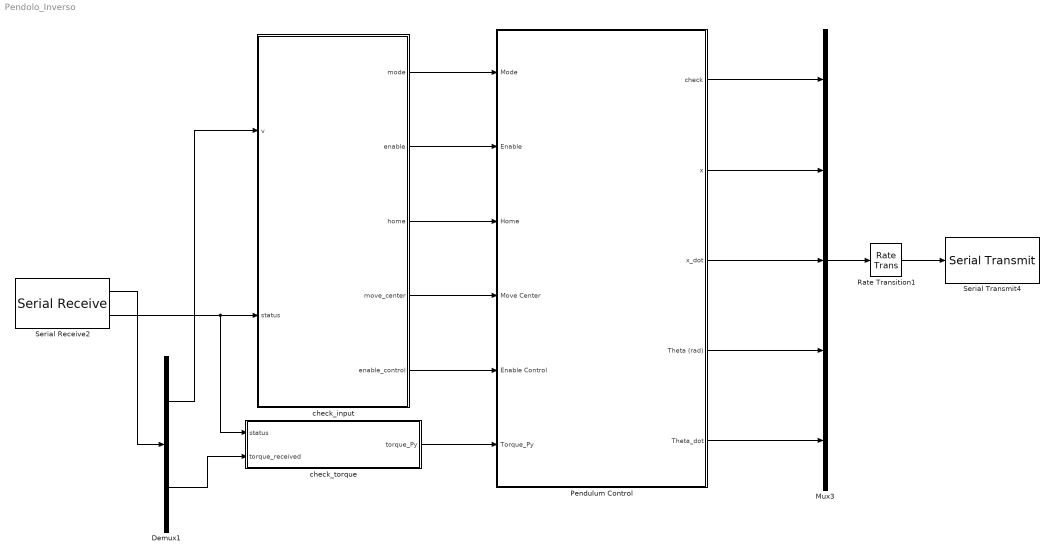
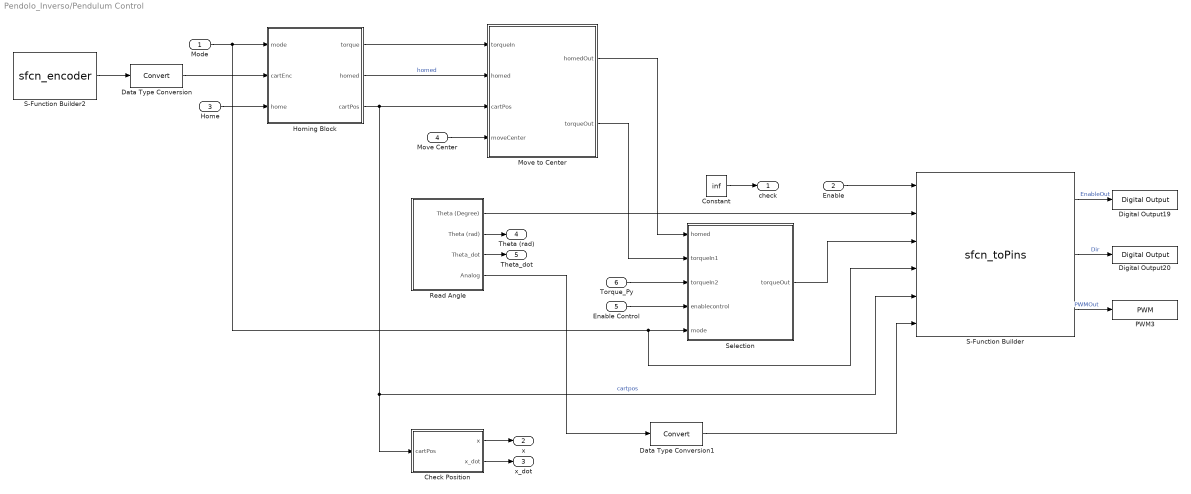
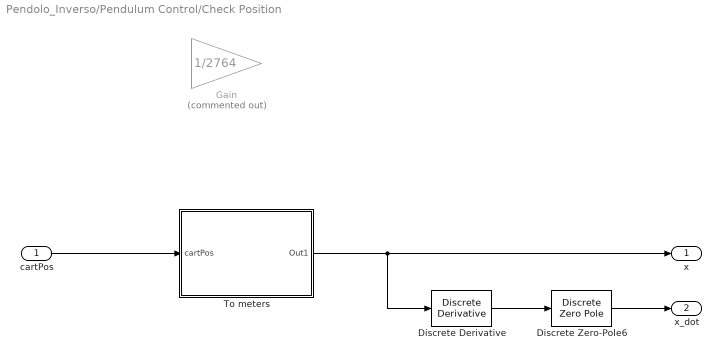
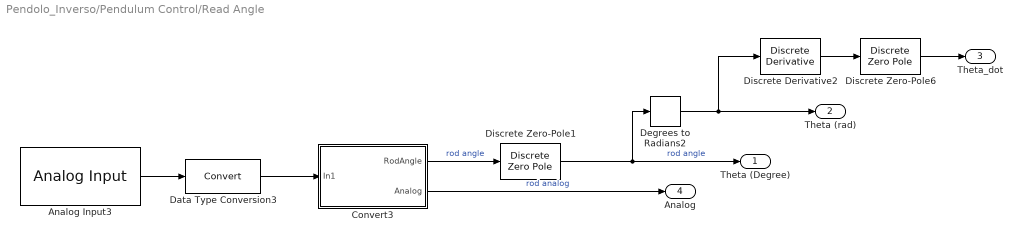
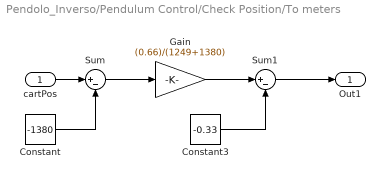
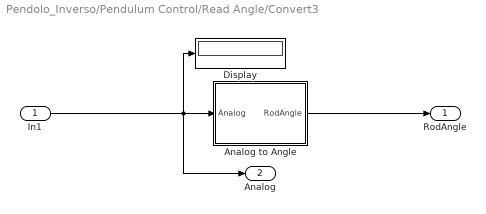
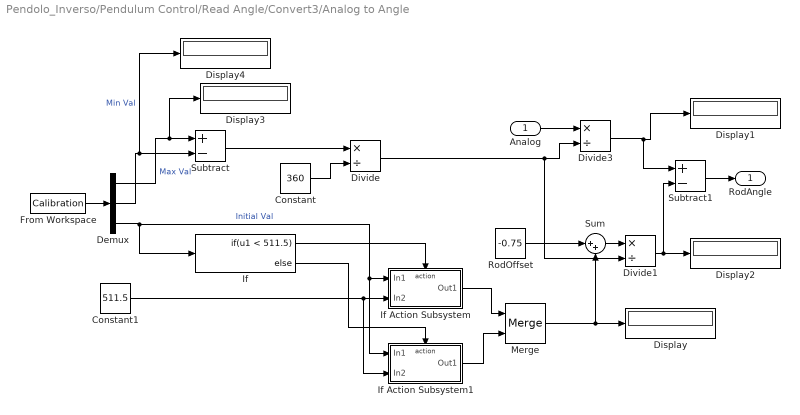
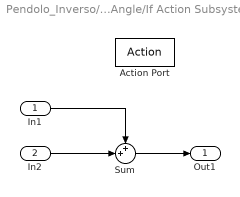
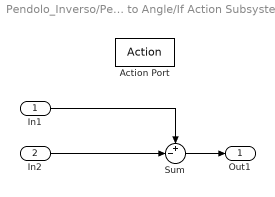
== matlab function Pendolo_Inverso/check_torque ==
function torque_Py = check_torque(status, torque_received)

persistent state
persistent torque_value

if(isempty(state))
    state = 1;
    torque_value = 0;
end

if(status == 1)
    torque_value = torque_received;
end

torque_Py = torque_value;

== matlab function Pendolo_Inverso/check_input ==
function [mode, enable, home, move_center, enable_control] = check_input(v, status)

persistent mode_value
persistent enable_value
persistent home_value
persistent move_center_value
persistent enable_control_value
persistent state

if(isempty(state))
    mode_value = 0;
    enable_value = 0;
    home_value = 0;
    move_center_value = 0;
    enable_control_value = 0;
    state = 0;
end

u = int8(v);
if (status == 1)
    if (u == 1)
        enable_value = mod(enable_value + 1, 2);
    elseif(u == 2)
        home_value = mod(home_value + 1, 2);
    elseif(u == 3)
        move_center_value = mod(move_center_value + 1, 2);
    elseif (u == 4)
        mode_value = mod(mode_value + 1, 2);
    elseif (u == 5)
        enable_control_value = mod(enable_control_value + 1, 2);
    end
end

mode = mode_value;
enable = enable_value;
home = home_value;
move_center = move_center_value;
enable_control = enable_control_value;

== matlab function Pendolo_Inverso/Pendulum Control/Homing Block ==
function [torque,homed,cartPos]=fcn(mode,cartEnc,home)
persistent torqueval
persistent state
persistent precartEnc
persistent homeval
persistent counter
persistent i
persistent precart
persistent prepos
persistent precartArray

% La prima volta isempty(state)==true, quindi inizializza tutte le variabili%
if isempty(state)
    torqueval=0;
    state=0;
    precartEnc=0;
    precartArray=[0 0 0 0 0 0 0 0 0 0];
    homeval=0;
    counter=0;
    i=0;
    precart=0;
    prepos=0;
end

% mode==0 è true se e solo se è settato su Initialize!!!
if (mode==0)

    
    if (homeval==0) % homeval è la variabile homed (homeval==0 : il cart NON sta al limite sinistro, homeval==1 : il cart sta al limite sinistro)
        if (home==0)    %(Home:Value settato ad OFF)
            state=0;
            homeval=0;
            counter=0;
            precart=0;
            prepos=0;
            precartArray=[0 0 0 0 0 0 0 0 0 0];
        end

        if (state==0)   
            torqueval=0;
            if (home==1) % (Home:Value settato ad ON)
                state=1;    % State != 0 <--> Centra il cart
            end
        elseif (state==1)
            torqueval=-300; % Settiamo quanto veloce deve andare il motore (essendo negativo vuol dire che il cart andrà a sinistra)
            state=2;
        elseif (state==2) % 1 sec wait and check final cartpos
            if (counter==150)
                if (all(precartArray==cartEnc)) % Se le ultime 10 posizioni del cart nell'utlimo secondo sono uguali a quella attuale vuol dire che ho raggiunto il limite sinistro
                    torqueval=0;    %Fermo il motore
                    homeval=1;  % Variabile homed settata ad 1
                    prepos=cartEnc; %Salvo il valore encoded della posizione attuale
                else
                      i=i+1;
                      precartArray(i)=precart; %Salvo le ultime 10 posizioni del cart
                      if (i==10)
                          i=0;
                      end             
                      precart=cartEnc;
                end
            else
                counter=counter+1;
            end
        end
    else
        if (home==0)
            state=0;
            homeval=0;
            counter=0;
            precartEnc=0;
            prepos=0;
        end
    end
end
homed=homeval;
torque=torqueval;
if (homed==1)   % Se non siamo più in fase di Inizializzazione prepos è costante, ma cartEnc varia in ogni ciclo
    precartEnc=-1382-prepos; % precartEnc : posizione del limite sinistro del pendolo
    cartPos=precartEnc+cartEnc;     % cartPos : posizione attuale del Cart
else
    cartPos=cartEnc;
end
end

== matlab function Pendolo_Inverso/Pendulum Control/Move to Center ==
function [homedOut, torqueOut] = fcn(torqueIn, homed, cartPos, moveCenter)
%initializing
persistent kp;
persistent set_pos;
if isempty(kp)
    set_pos=0;
    kp=10;
end

if (homed == 1 && moveCenter==1)    % Se il cart è homed e lo voglio centrare
   torqueOut=(kp*(set_pos-cartPos));    % Imposto un valore della torque proporzionale all'errore
   if (abs(set_pos-cartPos)<1)  % Se sono dentro una banda di tolleranza mi fermo
       torqueOut=0;
   end
else
    torqueOut=torqueIn;
end
homedOut=homed;
end

== matlab function Pendolo_Inverso/Pendulum Control/Selection ==
function torqueOut  =fcn(homed,torqueIn1,torqueIn2,enablecontrol,mode)
persistent torqueval

if isempty(torqueval)
    torqueval=0;
end

if (mode==0)    % Se è settato su Inizialize
    torqueval=torqueIn1;    % Seguo la torque dettata dal blocco Move To Center
end
if (mode==1)    % Se è settato su Pendulum Control...
    if (homed==1)   %... ed il cart è homed
        if (enablecontrol==1)   % Se Enable Control:Value è settato ad ON
            torqueval=torqueIn2;    % Seguo la torque dettata dal blocco Pendulum Control
        else
            torqueval=0;
        end
    end
end

torqueOut=torqueval;
end

/*
 * Academic License - for use in teaching, academic research, and meeting
 * course requirements at degree granting institutions only.  Not for
 * government, commercial, or other organizational use.
 *
 * File: Pendolo_Inverso.c
 *
 * Code generated for Simulink model 'Pendolo_Inverso'.
 *
 * Model version                  : 1.23
 * Simulink Coder version         : 24.1 (R2024a) 19-Nov-2023
 * C/C++ source code generated on : Tue Oct 29 16:42:45 2024
 *
 * Target selection: ert.tlc
 * Embedded hardware selection: Atmel->AVR
 * Code generation objectives: Unspecified
 * Validation result: Not run
 */

#include "Pendolo_Inverso.h"
#include "rtwtypes.h"
#include "Pendolo_Inverso_private.h"
#include <string.h>
#include <math.h>
#include <stddef.h>
#include "rt_nonfinite.h"

/* Block signals (default storage) */
B_Pendolo_Inverso_T Pendolo_Inverso_B;

/* Block states (default storage) */
DW_Pendolo_Inverso_T Pendolo_Inverso_DW;

/* Real-time model */
static RT_MODEL_Pendolo_Inverso_T Pendolo_Inverso_M_;
RT_MODEL_Pendolo_Inverso_T *const Pendolo_Inverso_M = &Pendolo_Inverso_M_;

/* Forward declaration for local functions */
static real_T Pendolo_Inverso_mod(real_T x);
static void rate_monotonic_scheduler(void);

/*
 * Set which subrates need to run this base step (base rate always runs).
 * This function must be called prior to calling the model step function
 * in order to remember which rates need to run this base step.  The
 * buffering of events allows for overlapping preemption.
 */
void Pendolo_Inverso_SetEventsForThisBaseStep(boolean_T *eventFlags)
{
  /* Task runs when its counter is zero, computed via rtmStepTask macro */
  eventFlags[2] = ((boolean_T)rtmStepTask(Pendolo_Inverso_M, 2));
}

/*
 *         This function updates active task flag for each subrate
 *         and rate transition flags for tasks that exchange data.
 *         The function assumes rate-monotonic multitasking scheduler.
 *         The function must be called at model base rate so that
 *         the generated code self-manages all its subrates and rate
 *         transition flags.
 */
static void rate_monotonic_scheduler(void)
{
  /* To ensure a deterministic data transfer between two rates,
   * data is transferred at the priority of a fast task and the frequency
   * of the slow task.  The following flags indicate when the data transfer
   * happens.  That is, a rate interaction flag is set true when both rates
   * will run, and false otherwise.
   */

  /* tid 1 shares data with slower tid rate: 2 */
  if (Pendolo_Inverso_M->Timing.TaskCounters.TID[1] == 0) {
    Pendolo_Inverso_M->Timing.RateInteraction.TID1_2 =
      (Pendolo_Inverso_M->Timing.TaskCounters.TID[2] == 0);
  }

  /* Compute which subrates run during the next base time step.  Subrates
   * are an integer multiple of the base rate counter.  Therefore, the subtask
   * counter is reset when it reaches its limit (zero means run).
   */
  (Pendolo_Inverso_M->Timing.TaskCounters.TID[2])++;
  if ((Pendolo_Inverso_M->Timing.TaskCounters.TID[2]) > 9) {/* Sample time: [0.05s, 0.0s] */
    Pendolo_Inverso_M->Timing.TaskCounters.TID[2] = 0;
  }
}

real_T rt_roundd_snf(real_T u)
{
  real_T y;
  if (fabs(u) < 4.503599627370496E+15) {
    if (u >= 0.5) {
      y = floor(u + 0.5);
    } else if (u > -0.5) {
      y = u * 0.0;
    } else {
      y = ceil(u - 0.5);
    }
  } else {
    y = u;
  }

  return y;
}

/* Function for MATLAB Function: '<Root>/check_input' */
static real_T Pendolo_Inverso_mod(real_T x)
{
  real_T r;
  if (rtIsNaN(x)) {
    r = (rtNaN);
  } else if (rtIsInf(x)) {
    r = (rtNaN);
  } else if (x == 0.0) {
    r = 0.0;
  } else {
    r = fmod(x, 2.0);
    if (r == 0.0) {
      r = 0.0;
    } else if (x < 0.0) {
      r += 2.0;
    }
  }

  return r;
}

/* Model step function for TID0 */
void Pendolo_Inverso_step0(void)       /* Sample time: [0.0s, 0.0s] */
{
  /* local block i/o variables */
  real_T rtb_TSamp;
  real_T rtb_Diff;
  real_T rtb_TSamp_a;
  real_T rtb_Diff_m;
  real_T rtb_DiscreteZeroPole6;
  real_T rtb_DiscreteZeroPole6_f;
  real_T rtb_Divide;
  int16_T i;
  uint16_T b_varargout_1;
  int8_T tmp;
  uint8_T b_status;
  boolean_T exitg1;
  boolean_T y;

  {                                    /* Sample time: [0.0s, 0.0s] */
    rate_monotonic_scheduler();
  }

  /* FromWorkspace: '<S14>/From Workspace' */
  {
    real_T *pDataValues = (real_T *)
      Pendolo_Inverso_DW.FromWorkspace_PWORK.DataPtr;

    {
      int_T elIdx;
      for (elIdx = 0; elIdx < 3; ++elIdx) {
        (&Pendolo_Inverso_B.FromWorkspace[0])[elIdx] = pDataValues[0];
        pDataValues += 1;
      }
    }
  }

  /* MATLABSystem: '<Root>/Serial Receive2' */
  if (Pendolo_Inverso_DW.obj_m.Protocol !=
      Pendolo_Inverso_P.SerialReceive2_Protocol) {
    Pendolo_Inverso_DW.obj_m.Protocol =
      Pendolo_Inverso_P.SerialReceive2_Protocol;
  }

  if (Pendolo_Inverso_DW.obj_m.QueueSizeFactor !=
      Pendolo_Inverso_P.SerialReceive2_QueueSizeFactor) {
    Pendolo_Inverso_DW.obj_m.QueueSizeFactor =
      Pendolo_Inverso_P.SerialReceive2_QueueSizeFactor;
  }

  MW_Serial_read(0, Pendolo_Inverso_DW.obj_m.DataSizeInBytes,
                 &Pendolo_Inverso_B.rtb_SerialReceive2_o1_m[0], &b_status, NULL,
                 0.0, NULL, 0.0);

  /* MATLAB Function: '<Root>/check_input' incorporates:
   *  MATLABSystem: '<Root>/Serial Receive2'
   * */
  if (b_status == 1) {
    Pendolo_Inverso_B.torqueOut_c = rt_roundd_snf
      (Pendolo_Inverso_B.rtb_SerialReceive2_o1_m[0]);
    if (Pendolo_Inverso_B.torqueOut_c < 128.0) {
      if (Pendolo_Inverso_B.torqueOut_c >= -128.0) {
        tmp = (int8_T)Pendolo_Inverso_B.torqueOut_c;
      } else {
        tmp = MIN_int8_T;
      }
    } else {
      tmp = MAX_int8_T;
    }

    switch (tmp) {
     case 1:
      Pendolo_Inverso_DW.enable_value = Pendolo_Inverso_mod
        (Pendolo_Inverso_DW.enable_value + 1.0);
      break;

     case 2:
      Pendolo_Inverso_DW.home_value = Pendolo_Inverso_mod
        (Pendolo_Inverso_DW.home_value + 1.0);
      break;

     case 3:
      Pendolo_Inverso_DW.move_center_value = Pendolo_Inverso_mod
        (Pendolo_Inverso_DW.move_center_value + 1.0);
      break;

     case 4:
      Pendolo_Inverso_DW.mode_value = Pendolo_Inverso_mod
        (Pendolo_Inverso_DW.mode_value + 1.0);
      break;

     case 5:
      Pendolo_Inverso_DW.enable_control_value = Pendolo_Inverso_mod
        (Pendolo_Inverso_DW.enable_control_value + 1.0);
      break;
    }
  }

  Pendolo_Inverso_B.mode = Pendolo_Inverso_DW.mode_value;
  Pendolo_Inverso_B.enable = Pendolo_Inverso_DW.enable_value;

  /* S-Function (sfcn_encoder): '<S1>/S-Function Builder2' */
  sfcn_encoder_Outputs_wrapper(&Pendolo_Inverso_B.SFunctionBuilder2,
    &Pendolo_Inverso_DW.SFunctionBuilder2_DSTATE,
    &Pendolo_Inverso_P.SFunctionBuilder2_P1, 1,
    &Pendolo_Inverso_P.SFunctionBuilder2_P2, 1,
    &Pendolo_Inverso_P.SFunctionBuilder2_P3, 1);

  /* MATLAB Function: '<S1>/Homing Block' incorporates:
   *  DataTypeConversion: '<S1>/Data Type Conversion'
   *  MATLAB Function: '<Root>/check_input'
   */
  if (Pendolo_Inverso_B.mode == 0.0) {
    if (Pendolo_Inverso_DW.homeval == 0.0) {
      if (Pendolo_Inverso_DW.home_value == 0.0) {
        Pendolo_Inverso_DW.state = 0.0;
        Pendolo_Inverso_DW.homeval = 0.0;
        Pendolo_Inverso_DW.counter = 0.0;
        Pendolo_Inverso_DW.precart = 0.0;
        Pendolo_Inverso_DW.prepos = 0.0;
        memset(&Pendolo_Inverso_DW.precartArray[0], 0, 10U * sizeof(real_T));
      }

      if (Pendolo_Inverso_DW.state == 0.0) {
        Pendolo_Inverso_DW.torqueval_i = 0.0;
        if (Pendolo_Inverso_DW.home_value == 1.0) {
          Pendolo_Inverso_DW.state = 1.0;
        }
      } else if (Pendolo_Inverso_DW.state == 1.0) {
        Pendolo_Inverso_DW.torqueval_i = -300.0;
        Pendolo_Inverso_DW.state = 2.0;
      } else if (Pendolo_Inverso_DW.counter == 150.0) {
        y = true;
        i = 0;
        exitg1 = false;
        while ((!exitg1) && (i < 10)) {
          if (!(Pendolo_Inverso_DW.precartArray[i] ==
                Pendolo_Inverso_B.SFunctionBuilder2)) {
            y = false;
            exitg1 = true;
          } else {
            i++;
          }
        }

        if (y) {
          Pendolo_Inverso_DW.torqueval_i = 0.0;
          Pendolo_Inverso_DW.homeval = 1.0;
          Pendolo_Inverso_DW.prepos = Pendolo_Inverso_B.SFunctionBuilder2;
        } else {
          Pendolo_Inverso_DW.i++;
          Pendolo_Inverso_DW.precartArray[(int16_T)Pendolo_Inverso_DW.i - 1] =
            Pendolo_Inverso_DW.precart;
          if (Pendolo_Inverso_DW.i == 10.0) {
            Pendolo_Inverso_DW.i = 0.0;
          }

          Pendolo_Inverso_DW.precart = Pendolo_Inverso_B.SFunctionBuilder2;
        }
      } else {
        Pendolo_Inverso_DW.counter++;
      }
    } else if (Pendolo_Inverso_DW.home_value == 0.0) {
      Pendolo_Inverso_DW.state = 0.0;
      Pendolo_Inverso_DW.homeval = 0.0;
      Pendolo_Inverso_DW.counter = 0.0;
      Pendolo_Inverso_DW.prepos = 0.0;
    }
  }

  if (Pendolo_Inverso_DW.homeval == 1.0) {
    Pendolo_Inverso_B.cartPos = (-1382.0 - Pendolo_Inverso_DW.prepos) + (real_T)
      Pendolo_Inverso_B.SFunctionBuilder2;
  } else {
    Pendolo_Inverso_B.cartPos = Pendolo_Inverso_B.SFunctionBuilder2;
  }

  /* MATLAB Function: '<S1>/Move to Center' incorporates:
   *  MATLAB Function: '<Root>/check_input'
   *  MATLAB Function: '<S1>/Homing Block'
   */
  if ((Pendolo_Inverso_DW.homeval == 1.0) &&
      (Pendolo_Inverso_DW.move_center_value == 1.0)) {
    rtb_Divide = Pendolo_Inverso_DW.set_pos - Pendolo_Inverso_B.cartPos;
    Pendolo_Inverso_B.torqueOut_c = rtb_Divide * Pendolo_Inverso_DW.kp;
    if (fabs(rtb_Divide) < 1.0) {
      Pendolo_Inverso_B.torqueOut_c = 0.0;
    }
  } else {
    Pendolo_Inverso_B.torqueOut_c = Pendolo_Inverso_DW.torqueval_i;
  }

  /* End of MATLAB Function: '<S1>/Move to Center' */

  /* MATLAB Function: '<Root>/check_torque' incorporates:
   *  MATLABSystem: '<Root>/Serial Receive2'
   * */
  if (b_status == 1) {
    Pendolo_Inverso_DW.torque_value = Pendolo_Inverso_B.rtb_SerialReceive2_o1_m
      [1];
  }

  /* MATLAB Function: '<S1>/Selection' incorporates:
   *  MATLAB Function: '<Root>/check_input'
   *  MATLAB Function: '<Root>/check_torque'
   *  MATLAB Function: '<S1>/Homing Block'
   */
  if (Pendolo_Inverso_B.mode == 0.0) {
    Pendolo_Inverso_DW.torqueval = Pendolo_Inverso_B.torqueOut_c;
  }

  if ((Pendolo_Inverso_B.mode == 1.0) && (Pendolo_Inverso_DW.homeval == 1.0)) {
    if (Pendolo_Inverso_DW.enable_control_value == 1.0) {
      Pendolo_Inverso_DW.torqueval = Pendolo_Inverso_DW.torque_value;
    } else {
      Pendolo_Inverso_DW.torqueval = 0.0;
    }
  }

  Pendolo_Inverso_B.torqueOut = Pendolo_Inverso_DW.torqueval;

  /* End of MATLAB Function: '<S1>/Selection' */

  /* MATLABSystem: '<S7>/Analog Input3' */
  if (Pendolo_Inverso_DW.obj_e.SampleTime != Pendolo_Inverso_P.Tc) {
    Pendolo_Inverso_DW.obj_e.SampleTime = Pendolo_Inverso_P.Tc;
  }

  Pendolo_Inverso_DW.obj_e.AnalogInDriverObj.MW_ANALOGIN_HANDLE =
    MW_AnalogIn_GetHandle(59UL);
  MW_AnalogInSingle_ReadResult
    (Pendolo_Inverso_DW.obj_e.AnalogInDriverObj.MW_ANALOGIN_HANDLE,
     &b_varargout_1, MW_ANALOGIN_UINT16);

  /* DataTypeConversion: '<S7>/Data Type Conversion3' incorporates:
   *  MATLABSystem: '<S7>/Analog Input3'
   * */
  Pendolo_Inverso_B.DataTypeConversion3 = b_varargout_1;

  /* Product: '<S14>/Divide' incorporates:
   *  Constant: '<S14>/Constant'
   *  Sum: '<S14>/Subtract'
   */
  rtb_Divide = (Pendolo_Inverso_B.FromWorkspace[0] -
                Pendolo_Inverso_B.FromWorkspace[1]) /
    Pendolo_Inverso_P.Constant_Value;

  /* If: '<S14>/If' incorporates:
   *  Constant: '<S14>/Constant1'
   *  Constant: '<S14>/RodOffset'
   *  Product: '<S14>/Divide1'
   *  Product: '<S14>/Divide3'
   *  Sum: '<S14>/Subtract1'
   *  Sum: '<S14>/Sum'
   *  Sum: '<S15>/Sum'
   *  Sum: '<S16>/Sum'
   */
  if (Pendolo_Inverso_B.FromWorkspace[2] < 511.5) {
    /* Outputs for IfAction SubSystem: '<S14>/If Action Subsystem' incorporates:
     *  ActionPort: '<S15>/Action Port'
     */
    Pendolo_Inverso_B.torqueOut_c = Pendolo_Inverso_B.FromWorkspace[2] +
      Pendolo_Inverso_P.Constant1_Value;

    /* End of Outputs for SubSystem: '<S14>/If Action Subsystem' */
  } else {
    /* Outputs for IfAction SubSystem: '<S14>/If Action Subsystem1' incorporates:
     *  ActionPort: '<S16>/Action Port'
     */
    Pendolo_Inverso_B.torqueOut_c = Pendolo_Inverso_B.FromWorkspace[2] -
      Pendolo_Inverso_P.Constant1_Value;

    /* End of Outputs for SubSystem: '<S14>/If Action Subsystem1' */
  }

  Pendolo_Inverso_B.Subtract1 = Pendolo_Inverso_B.DataTypeConversion3 /
    rtb_Divide - (Pendolo_Inverso_P.RodOffset_Value +
                  Pendolo_Inverso_B.torqueOut_c) / rtb_Divide;

  /* End of If: '<S14>/If' */

  /* DiscreteZeroPole: '<S7>/Discrete Zero-Pole1' */
  {
    Pendolo_Inverso_B.rodangle = Pendolo_Inverso_P.DiscreteZeroPole1_D*
      Pendolo_Inverso_B.Subtract1;
    Pendolo_Inverso_B.rodangle += Pendolo_Inverso_P.DiscreteZeroPole1_C*
      Pendolo_Inverso_DW.DiscreteZeroPole1_DSTATE;
  }

  /* S-Function (sfcn_toPins): '<S1>/S-Function Builder' */
  sfcn_toPins_Outputs_wrapper(&Pendolo_Inverso_B.enable,
    &Pendolo_Inverso_B.rodangle, &Pendolo_Inverso_B.torqueOut,
    &Pendolo_Inverso_B.mode, &Pendolo_Inverso_B.cartPos,
    &Pendolo_Inverso_B.DataTypeConversion3, &Pendolo_Inverso_B.EnableOut,
    &Pendolo_Inverso_B.Dir, &Pendolo_Inverso_B.PWMOut);

  /* MATLABSystem: '<S1>/Digital Output19' */
  Pendolo_Inverso_B.torqueOut_c = rt_roundd_snf(Pendolo_Inverso_B.EnableOut);
  if (Pendolo_Inverso_B.torqueOut_c < 256.0) {
    if (Pendolo_Inverso_B.torqueOut_c >= 0.0) {
      b_status = (uint8_T)Pendolo_Inverso_B.torqueOut_c;
    } else {
      b_status = 0U;
    }
  } else {
    b_status = MAX_uint8_T;
  }

  writeDigitalPin(12, b_status);

  /* End of MATLABSystem: '<S1>/Digital Output19' */

  /* MATLABSystem: '<S1>/Digital Output20' */
  Pendolo_Inverso_B.torqueOut_c = rt_roundd_snf(Pendolo_Inverso_B.Dir);
  if (Pendolo_Inverso_B.torqueOut_c < 256.0) {
    if (Pendolo_Inverso_B.torqueOut_c >= 0.0) {
      b_status = (uint8_T)Pendolo_Inverso_B.torqueOut_c;
    } else {
      b_status = 0U;
    }
  } else {
    b_status = MAX_uint8_T;
  }

  writeDigitalPin(34, b_status);

  /* End of MATLABSystem: '<S1>/Digital Output20' */

  /* MATLABSystem: '<S1>/PWM3' */
  Pendolo_Inverso_DW.obj_f.PWMDriverObj.MW_PWM_HANDLE = MW_PWM_GetHandle(11UL);

  /* Start for MATLABSystem: '<S1>/PWM3' */
  if (Pendolo_Inverso_B.PWMOut <= 255.0) {
    Pendolo_Inverso_B.torqueOut_c = Pendolo_Inverso_B.PWMOut;
  } else {
    Pendolo_Inverso_B.torqueOut_c = 255.0;
  }

  if (!(Pendolo_Inverso_B.torqueOut_c >= 0.0)) {
    Pendolo_Inverso_B.torqueOut_c = 0.0;
  }

  /* MATLABSystem: '<S1>/PWM3' */
  MW_PWM_SetDutyCycle(Pendolo_Inverso_DW.obj_f.PWMDriverObj.MW_PWM_HANDLE,
                      Pendolo_Inverso_B.torqueOut_c);

  /* Gain: '<S12>/Gain1' */
  Pendolo_Inverso_B.torqueOut_c = Pendolo_Inverso_P.Gain1_Gain *
    Pendolo_Inverso_B.rodangle;

  /* SampleTimeMath: '<S13>/TSamp'
   *
   * About '<S13>/TSamp':
   *  y = u * K where K = 1 / ( w * Ts )
   *   */
  rtb_TSamp = Pendolo_Inverso_B.torqueOut_c * Pendolo_Inverso_P.TSamp_WtEt;

  /* Sum: '<S13>/Diff' incorporates:
   *  UnitDelay: '<S13>/UD'
   *
   * Block description for '<S13>/Diff':
   *
   *  Add in CPU
   *
   * Block description for '<S13>/UD':
   *
   *  Store in Global RAM
   */
  rtb_Diff = rtb_TSamp - Pendolo_Inverso_DW.UD_DSTATE;

  /* DiscreteZeroPole: '<S7>/Discrete Zero-Pole6' */
  {
    rtb_DiscreteZeroPole6 = Pendolo_Inverso_P.DiscreteZeroPole6_D*rtb_Diff;
    rtb_DiscreteZeroPole6 += Pendolo_Inverso_P.DiscreteZeroPole6_C*
      Pendolo_Inverso_DW.DiscreteZeroPole6_DSTATE;
  }

  /* Sum: '<S10>/Sum1' incorporates:
   *  Constant: '<S10>/Constant'
   *  Constant: '<S10>/Constant3'
   *  Gain: '<S10>/Gain'
   *  Sum: '<S10>/Sum'
   */
  rtb_Divide = (Pendolo_Inverso_B.cartPos - Pendolo_Inverso_P.Constant_Value_j) *
    Pendolo_Inverso_P.Gain_Gain + Pendolo_Inverso_P.Constant3_Value;

  /* SampleTimeMath: '<S9>/TSamp'
   *
   * About '<S9>/TSamp':
   *  y = u * K where K = 1 / ( w * Ts )
   *   */
  rtb_TSamp_a = rtb_Divide * Pendolo_Inverso_P.TSamp_WtEt_p;

  /* Sum: '<S9>/Diff' incorporates:
   *  UnitDelay: '<S9>/UD'
   *
   * Block description for '<S9>/Diff':
   *
   *  Add in CPU
   *
   * Block description for '<S9>/UD':
   *
   *  Store in Global RAM
   */
  rtb_Diff_m = rtb_TSamp_a - Pendolo_Inverso_DW.UD_DSTATE_n;

  /* DiscreteZeroPole: '<S4>/Discrete Zero-Pole6' */
  {
    rtb_DiscreteZeroPole6_f = Pendolo_Inverso_P.DiscreteZeroPole6_D_l*rtb_Diff_m;
    rtb_DiscreteZeroPole6_f += Pendolo_Inverso_P.DiscreteZeroPole6_C_p*
      Pendolo_Inverso_DW.DiscreteZeroPole6_DSTATE_g;
  }

  /* RateTransition: '<Root>/Rate Transition1' incorporates:
   *  Constant: '<S1>/Constant'
   */
  if (Pendolo_Inverso_M->Timing.RateInteraction.TID1_2) {
    Pendolo_Inverso_DW.RateTransition1_Buffer[0] =
      Pendolo_Inverso_P.Constant_Value_o;
    Pendolo_Inverso_DW.RateTransition1_Buffer[1] = rtb_Divide;
    Pendolo_Inverso_DW.RateTransition1_Buffer[2] = rtb_DiscreteZeroPole6_f;
    Pendolo_Inverso_DW.RateTransition1_Buffer[3] = Pendolo_Inverso_B.torqueOut_c;
    Pendolo_Inverso_DW.RateTransition1_Buffer[4] = rtb_DiscreteZeroPole6;
  }

  /* End of RateTransition: '<Root>/Rate Transition1' */

  /* Update for S-Function (sfcn_encoder): '<S1>/S-Function Builder2' */

  /* S-Function "sfcn_encoder_wrapper" Block: <S1>/S-Function Builder2 */
  sfcn_encoder_Update_wrapper(&Pendolo_Inverso_B.SFunctionBuilder2,
    &Pendolo_Inverso_DW.SFunctionBuilder2_DSTATE,
    &Pendolo_Inverso_P.SFunctionBuilder2_P1, 1,
    &Pendolo_Inverso_P.SFunctionBuilder2_P2, 1,
    &Pendolo_Inverso_P.SFunctionBuilder2_P3, 1);

  /* Update for DiscreteZeroPole: '<S7>/Discrete Zero-Pole1' */
  {
    Pendolo_Inverso_DW.DiscreteZeroPole1_DSTATE = Pendolo_Inverso_B.Subtract1 +
      Pendolo_Inverso_P.DiscreteZeroPole1_A*
      Pendolo_Inverso_DW.DiscreteZeroPole1_DSTATE;
  }

  /* Update for UnitDelay: '<S13>/UD'
   *
   * Block description for '<S13>/UD':
   *
   *  Store in Global RAM
   */
  Pendolo_Inverso_DW.UD_DSTATE = rtb_TSamp;

  /* Update for DiscreteZeroPole: '<S7>/Discrete Zero-Pole6' */
  {
    Pendolo_Inverso_DW.DiscreteZeroPole6_DSTATE = rtb_Diff +
      Pendolo_Inverso_P.DiscreteZeroPole6_A*
      Pendolo_Inverso_DW.DiscreteZeroPole6_DSTATE;
  }

  /* Update for UnitDelay: '<S9>/UD'
   *
   * Block description for '<S9>/UD':
   *
   *  Store in Global RAM
   */
  Pendolo_Inverso_DW.UD_DSTATE_n = rtb_TSamp_a;

  /* Update for DiscreteZeroPole: '<S4>/Discrete Zero-Pole6' */
  {
    Pendolo_Inverso_DW.DiscreteZeroPole6_DSTATE_g = rtb_Diff_m +
      Pendolo_Inverso_P.DiscreteZeroPole6_A_k*
      Pendolo_Inverso_DW.DiscreteZeroPole6_DSTATE_g;
  }

  /* Update absolute time */
  /* The "clockTick0" counts the number of times the code of this task has
   * been executed. The absolute time is the multiplication of "clockTick0"
   * and "Timing.stepSize0". Size of "clockTick0" ensures timer will not
   * overflow during the application lifespan selected.
   */
  Pendolo_Inverso_M->Timing.t[0] =
    ((time_T)(++Pendolo_Inverso_M->Timing.clockTick0)) *
    Pendolo_Inverso_M->Timing.stepSize0;

  /* Update absolute time */
  /* The "clockTick1" counts the number of times the code of this task has
   * been executed. The resolution of this integer timer is 0.005, which is the step size
   * of the task. Size of "clockTick1" ensures timer will not overflow during the
   * application lifespan selected.
   */
  Pendolo_Inverso_M->Timing.clockTick1++;
}

/* Model step function for TID2 */
void Pendolo_Inverso_step2(void)       /* Sample time: [0.05s, 0.0s] */
{
  real_T dataIn[5];
  int16_T i;

  /* MATLABSystem: '<Root>/Serial Transmit4' incorporates:
   *  RateTransition: '<Root>/Rate Transition1'
   */
  if (Pendolo_Inverso_DW.obj.Protocol !=
      Pendolo_Inverso_P.SerialTransmit4_Protocol) {
    Pendolo_Inverso_DW.obj.Protocol = Pendolo_Inverso_P.SerialTransmit4_Protocol;
  }

  for (i = 0; i < 5; i++) {
    dataIn[i] = Pendolo_Inverso_DW.RateTransition1_Buffer[i];
  }

  MW_Serial_write(Pendolo_Inverso_DW.obj.port, &dataIn[0], 5.0,
                  Pendolo_Inverso_DW.obj.dataSizeInBytes,
                  Pendolo_Inverso_DW.obj.sendModeEnum,
                  Pendolo_Inverso_DW.obj.dataType,
                  Pendolo_Inverso_DW.obj.sendFormatEnum, 2.0, '\x00', NULL, 0.0,
                  NULL, 0.0);

  /* End of MATLABSystem: '<Root>/Serial Transmit4' */
}
